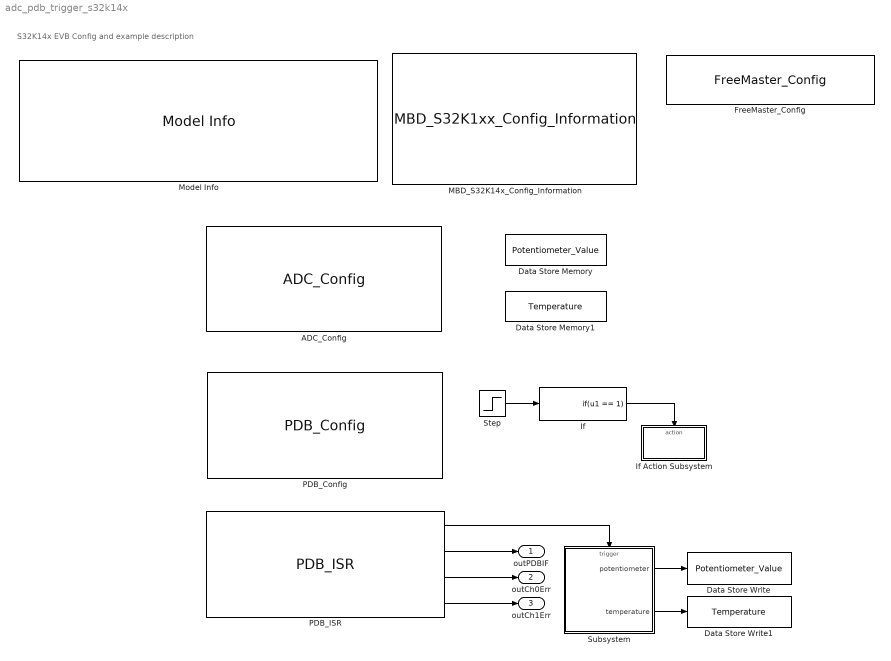
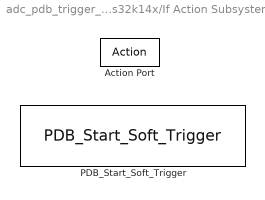
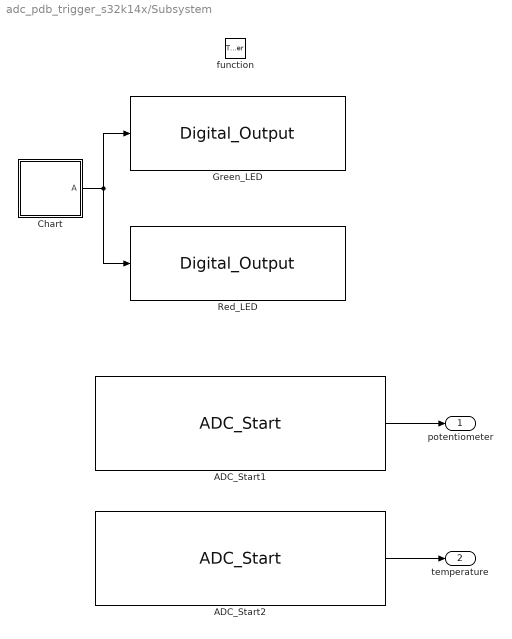
== stateflow chart Subsystem/Chart ==
  state A
  state A1
  (default) -> A
  A -> A1
  A1 -> A
  data: A output boolean [0..1]

/*
 * Academic License - for use in teaching, academic research, and meeting
 * course requirements at degree granting institutions only.  Not for
 * government, commercial, or other organizational use.
 *
 * File: adc_pdb_trigger_s32k14x.c
 *
 * Code generated for Simulink model 'adc_pdb_trigger_s32k14x'.
 *
 * Model version                  : 1.128
 * Simulink Coder version         : 9.0 (R2018b) 24-May-2018
 * C/C++ source code generated on : Fri Apr 10 12:50:59 2020
 *
 * Target selection: mbd_s32k.tlc
 * Embedded hardware selection: ARM Compatible->ARM Cortex
 * Code generation objectives: Unspecified
 * Validation result: Not run
 */

#include "adc_pdb_trigger_s32k14x.h"
#include "adc_pdb_trigger_s32k14x_private.h"

/* Named constants for Chart: '<S3>/Chart' */
#define adc_pdb_trig_IN_NO_ACTIVE_CHILD ((uint8_T)0U)
#define adc_pdb_trigger_s32k14x_IN_A   ((uint8_T)1U)
#define adc_pdb_trigger_s32k14x_IN_A1  ((uint8_T)2U)

/* Exported data definition */

/* Volatile memory section */
/* Definition for custom storage class: Volatile */
volatile uint32_T Potentiometer_Value;
volatile uint32_T Temperature;

/* Block signals (default storage) */
B_adc_pdb_trigger_s32k14x_T adc_pdb_trigger_s32k14x_B;

/* Block states (default storage) */
DW_adc_pdb_trigger_s32k14x_T adc_pdb_trigger_s32k14x_DW;

/* External outputs (root outports fed by signals with default storage) */
ExtY_adc_pdb_trigger_s32k14x_T adc_pdb_trigger_s32k14x_Y;

/* Real-time model */
RT_MODEL_adc_pdb_trigger_s32k_T adc_pdb_trigger_s32k14x_M_;
RT_MODEL_adc_pdb_trigger_s32k_T *const adc_pdb_trigger_s32k14x_M =
  &adc_pdb_trigger_s32k14x_M_;

/* System initialize for function-call system: '<Root>/Subsystem' */
void adc_pdb_trigger__Subsystem_Init(void)
{
  /* SystemInitialize for Chart: '<S3>/Chart' */
  adc_pdb_trigger_s32k14x_DW.is_active_c2_adc_pdb_trigger_s3 = 0U;
  adc_pdb_trigger_s32k14x_DW.is_c2_adc_pdb_trigger_s32k14x =
    adc_pdb_trig_IN_NO_ACTIVE_CHILD;
  adc_pdb_trigger_s32k14x_B.A = false;
}

/* System reset for function-call system: '<Root>/Subsystem' */
void adc_pdb_trigger_Subsystem_Reset(void)
{
  /* SystemReset for Chart: '<S3>/Chart' */
  adc_pdb_trigger_s32k14x_DW.is_active_c2_adc_pdb_trigger_s3 = 0U;
  adc_pdb_trigger_s32k14x_DW.is_c2_adc_pdb_trigger_s32k14x =
    adc_pdb_trig_IN_NO_ACTIVE_CHILD;
  adc_pdb_trigger_s32k14x_B.A = false;
}

/* Start for function-call system: '<Root>/Subsystem' */
void adc_pdb_trigger_Subsystem_Start(void)
{
  /* Start for S-Function (adc_s32k_start): '<S3>/ADC_Start1' */
  {
    adc_chan_config_t adc0_chan_cfg = {
      .interruptEnable = false,
      .channel = ADC_INPUTCHAN_EXT12
    };

    /* Initialize channel configuration of ADC0. */
    ADC_DRV_ConfigChan(0, 0, &adc0_chan_cfg);
  }

  /* Start for S-Function (adc_s32k_start): '<S3>/ADC_Start2' */
  {
    adc_chan_config_t adc0_chan_cfg = {
      .interruptEnable = false,
      .channel = ADC_INPUTCHAN_EXT6
    };

    /* Initialize channel configuration of ADC0. */
    ADC_DRV_ConfigChan(0, 1, &adc0_chan_cfg);
  }

  /* Start for S-Function (gpio_s32k_output): '<S3>/Green_LED' */
  {
    /* Enable clock for PORTD */
    PCC_SetClockMode(PCC, PCC_PORTD_CLOCK, true);

    /* Configure the output port init structure. */
    const pin_settings_config_t gpioPORTDPin16 = {
      .base = PORTD,
      .pinPortIdx = 16,
      .pullConfig = PORT_INTERNAL_PULL_NOT_ENABLED,
      .passiveFilter = false,
      .driveSelect = PORT_LOW_DRIVE_STRENGTH,
      .mux = PORT_MUX_AS_GPIO,
      .pinLock = false,
      .intConfig = PORT_DMA_INT_DISABLED,
      .clearIntFlag = true,
      .gpioBase = PTD,
      .direction = GPIO_OUTPUT_DIRECTION,
      .initValue = 0U
    };

    /* Initialize GPIPORTD16. */
    PINS_DRV_Init(1, &gpioPORTDPin16);
  }

  /* Start for S-Function (gpio_s32k_output): '<S3>/Red_LED' */
  {
    /* Enable clock for PORTD */
    PCC_SetClockMode(PCC, PCC_PORTD_CLOCK, true);

    /* Configure the output port init structure. */
    const pin_settings_config_t gpioPORTDPin15 = {
      .base = PORTD,
      .pinPortIdx = 15,
      .pullConfig = PORT_INTERNAL_PULL_NOT_ENABLED,
      .passiveFilter = false,
      .driveSelect = PORT_LOW_DRIVE_STRENGTH,
      .mux = PORT_MUX_AS_GPIO,
      .pinLock = false,
      .intConfig = PORT_DMA_INT_DISABLED,
      .clearIntFlag = true,
      .gpioBase = PTD,
      .direction = GPIO_OUTPUT_DIRECTION,
      .initValue = 0U
    };

    /* Initialize GPIPORTD15. */
    PINS_DRV_Init(1, &gpioPORTDPin15);
  }
}

/* Output and update for function-call system: '<Root>/Subsystem' */
void adc_pdb_trigger_s32k1_Subsystem(void)
{
  /* S-Function (adc_s32k_start): '<S3>/ADC_Start1' */
  {
    uint16_t result;

    /* Get conversion result of ADC0 */
    ADC_DRV_WaitConvDone(0);
    ADC_DRV_GetChanResult(0, 0, &result);
    adc_pdb_trigger_s32k14x_B.ADC_Start1 = result;
  }

  /* S-Function (adc_s32k_start): '<S3>/ADC_Start2' */
  {
    uint16_t result;

    /* Get conversion result of ADC0 */
    ADC_DRV_WaitConvDone(0);
    ADC_DRV_GetChanResult(0, 1, &result);
    adc_pdb_trigger_s32k14x_B.ADC_Start2 = result;
  }

  /* Chart: '<S3>/Chart' */
  if (adc_pdb_trigger_s32k14x_DW.is_active_c2_adc_pdb_trigger_s3 == 0U) {
    adc_pdb_trigger_s32k14x_DW.is_active_c2_adc_pdb_trigger_s3 = 1U;
    adc_pdb_trigger_s32k14x_DW.is_c2_adc_pdb_trigger_s32k14x =
      adc_pdb_trigger_s32k14x_IN_A;
    adc_pdb_trigger_s32k14x_B.A = true;
  } else if (adc_pdb_trigger_s32k14x_DW.is_c2_adc_pdb_trigger_s32k14x ==
             adc_pdb_trigger_s32k14x_IN_A) {
    adc_pdb_trigger_s32k14x_B.A = false;
    adc_pdb_trigger_s32k14x_DW.is_c2_adc_pdb_trigger_s32k14x =
      adc_pdb_trigger_s32k14x_IN_A1;
  } else {
    adc_pdb_trigger_s32k14x_DW.is_c2_adc_pdb_trigger_s32k14x =
      adc_pdb_trigger_s32k14x_IN_A;
    adc_pdb_trigger_s32k14x_B.A = true;
  }

  /* End of Chart: '<S3>/Chart' */

  /* S-Function (gpio_s32k_output): '<S3>/Green_LED' */

  /* GPOPORTD16 Data Signal Update */
  if (adc_pdb_trigger_s32k14x_B.A) {
    PINS_DRV_SetPins(PTD, 1UL<<16);
  } else {
    PINS_DRV_ClearPins(PTD, 1UL<<16);
  }

  /* S-Function (gpio_s32k_output): '<S3>/Red_LED' */

  /* GPOPORTD15 Data Signal Update */
  if (adc_pdb_trigger_s32k14x_B.A) {
    PINS_DRV_SetPins(PTD, 1UL<<15);
  } else {
    PINS_DRV_ClearPins(PTD, 1UL<<15);
  }
}

/* Model step function */
void adc_pdb_trigger_s32k14x_step(void)
{
  real_T currentTime;

  /* Outport: '<Root>/outPDBIF' incorporates:
   *  Outport: '<Root>/outCh0Err'
   *  Outport: '<Root>/outCh1Err'
   */

  /* DataStoreWrite: '<Root>/Data Store Write' */
  Potentiometer_Value = adc_pdb_trigger_s32k14x_B.ADC_Start1;

  /* DataStoreWrite: '<Root>/Data Store Write1' */
  Temperature = adc_pdb_trigger_s32k14x_B.ADC_Start2;

  /* Step: '<Root>/Step' */
  currentTime = ((adc_pdb_trigger_s32k14x_M->Timing.clockTick0) * 0.1);
  if (currentTime < 0.1) {
    /* Outputs for IfAction SubSystem: '<Root>/If Action Subsystem' incorporates:
     *  ActionPort: '<S1>/Action Port'
     */
    /* If: '<Root>/If' incorporates:
     *  S-Function (pdb_s32k_start_soft_trigger): '<S1>/PDB_Start_Soft_Trigger'
     */

    /* Set software trigger: reset and restart the PDB0 counter */
    PDB_DRV_SoftTriggerCmd(0);

    /* End of Outputs for SubSystem: '<Root>/If Action Subsystem' */
  }

  /* End of Step: '<Root>/Step' */

  /* Update absolute time for base rate */
  /* The "clockTick0" counts the number of times the code of this task has
   * been executed. The resolution of this integer timer is 0.1, which is the step size
   * of the task. Size of "clockTick0" ensures timer will not overflow during the
   * application lifespan selected.
   */
  adc_pdb_trigger_s32k14x_M->Timing.clockTick0++;
}
